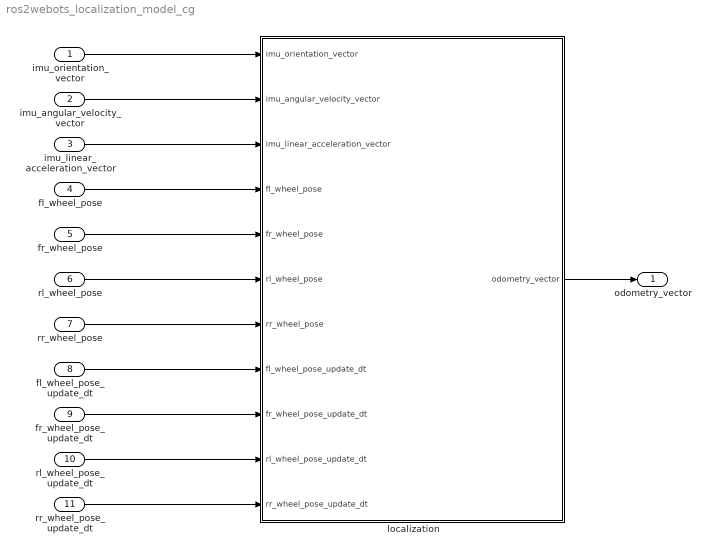
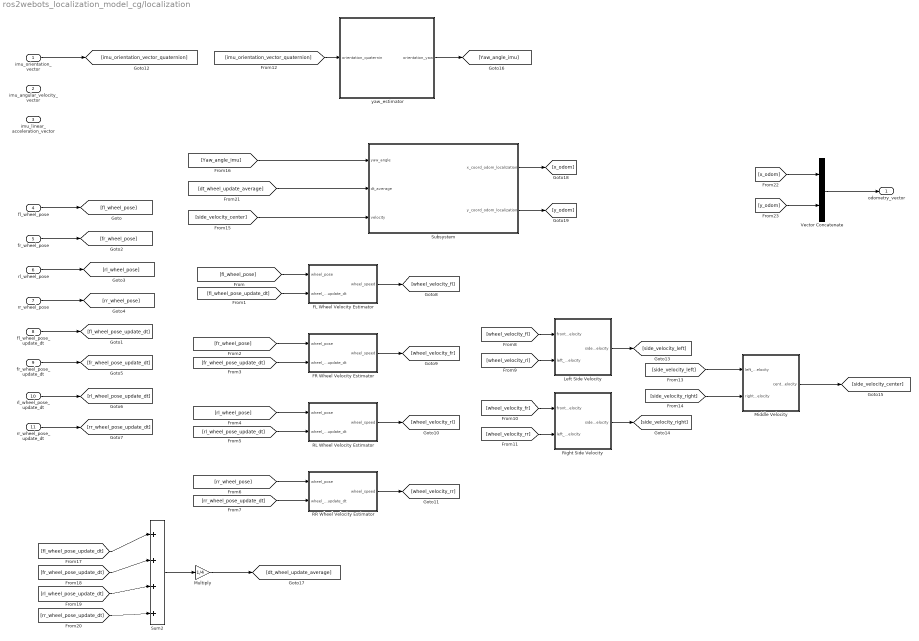
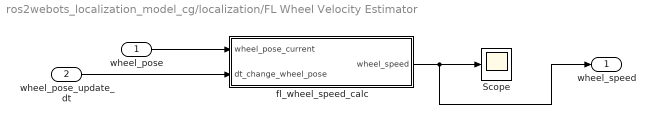
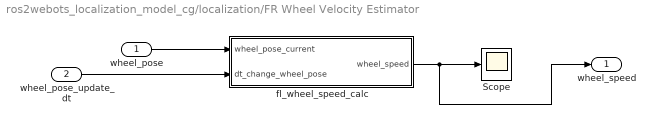
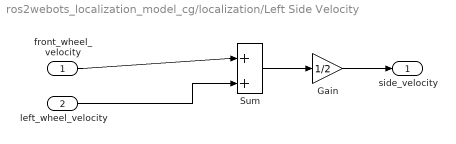
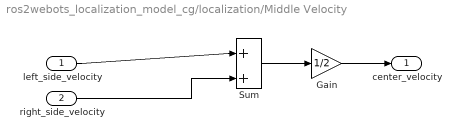
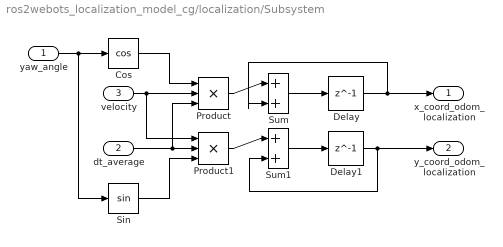
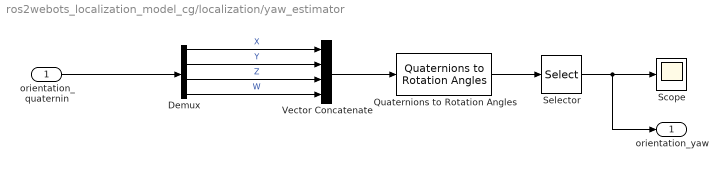
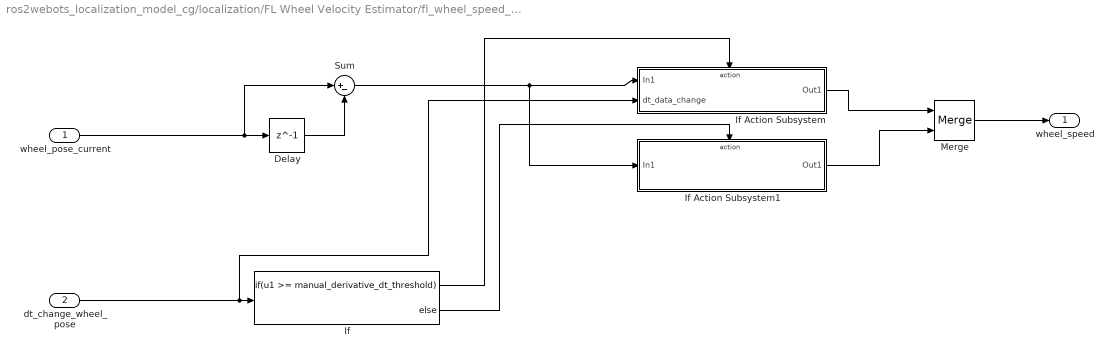
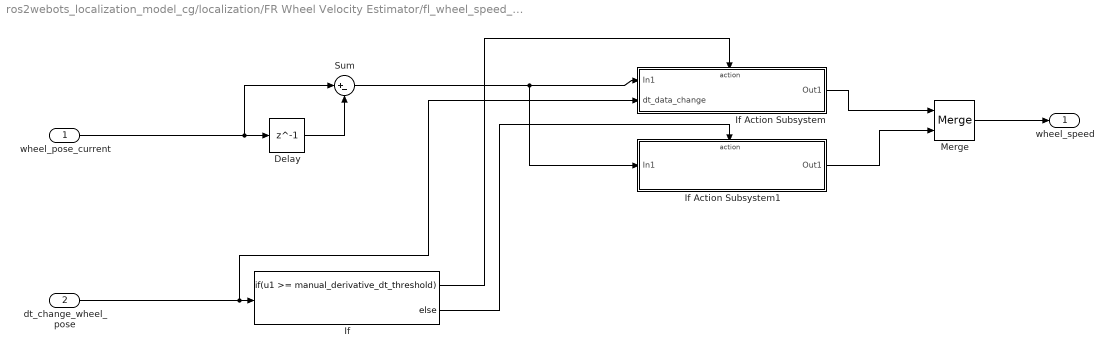
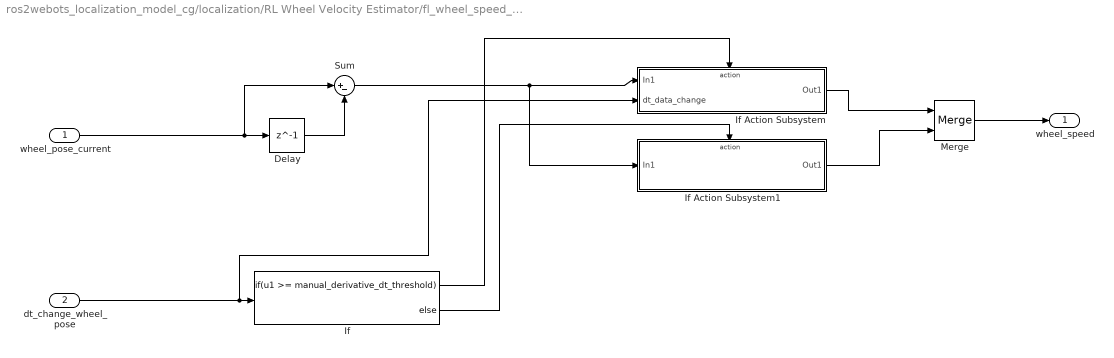
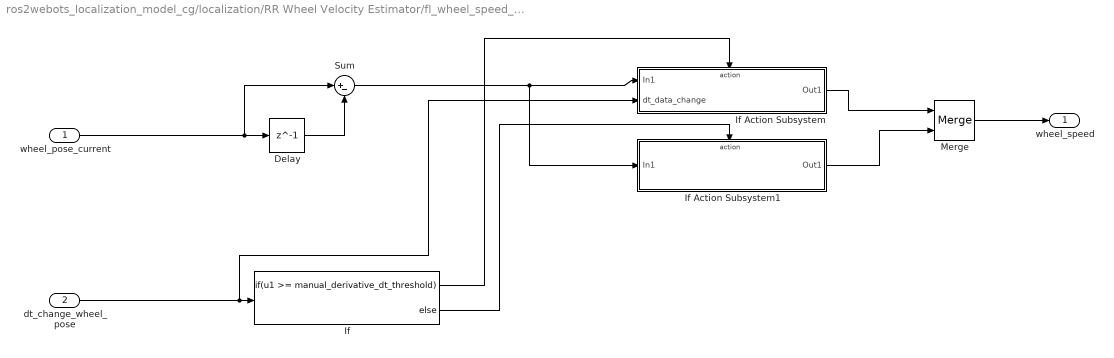
== system ros2webots_localization_model_cg/localization/RL Wheel Velocity Estimator ==
  wheel_pose : Inport
  wheel_pose_update_dt : Inport  Port=2
  Scope : Scope
  fl_wheel_speed_calc : Subsystem
  wheel_speed : Outport
  wires:
  wheel_pose/1 -> fl_wheel_speed_calc/1(wheel_pose_current)
  fl_wheel_speed_calc/1(wheel_speed) -> wheel_speed/1, Scope/1
  wheel_pose_update_dt/1 -> fl_wheel_speed_calc/2(dt_change_wheel_pose)

== system ros2webots_localization_model_cg/localization/RR Wheel Velocity Estimator ==
  wheel_pose : Inport
  wheel_pose_update_dt : Inport  Port=2
  Scope : Scope
  fl_wheel_speed_calc : Subsystem
  wheel_speed : Outport
  wires:
  wheel_pose/1 -> fl_wheel_speed_calc/1(wheel_pose_current)
  fl_wheel_speed_calc/1(wheel_speed) -> wheel_speed/1, Scope/1
  wheel_pose_update_dt/1 -> fl_wheel_speed_calc/2(dt_change_wheel_pose)

== system ros2webots_localization_model_cg/localization/Right Side Velocity ==
  front_wheel_velocity : Inport
  left_wheel_velocity : Inport  Port=2
  Gain : Gain  Gain=1/2
  Sum : Sum  Inputs=|++
  side_velocity : Outport
  wires:
  left_wheel_velocity/1 -> Sum/2
  front_wheel_velocity/1 -> Sum/1
  Sum/1 -> Gain/1
  Gain/1 -> side_velocity/1

== system ros2webots_localization_model_cg/localization/FL Wheel Velocity Estimator/fl_wheel_speed_calc/If Action Subsystem ==
  In1 : Inport
  dt_data_change : Inport  Port=2
  Action Port : ActionPort  ActionPortLabel=if(u1 >= manual_derivative_dt_threshold)
  Divide : Product  Inputs=*/
  Out1 : Outport
  wires:
  In1/1 -> Divide/1
  dt_data_change/1 -> Divide/2
  Divide/1 -> Out1/1

== system ros2webots_localization_model_cg/localization/FL Wheel Velocity Estimator/fl_wheel_speed_calc/If Action Subsystem1 ==
  In1 : Inport
  Action Port : ActionPort  ActionPortLabel=else
  Out1 : Outport
  wires:
  In1/1 -> Out1/1

== system ros2webots_localization_model_cg/localization/FR Wheel Velocity Estimator/fl_wheel_speed_calc/If Action Subsystem ==
  In1 : Inport
  dt_data_change : Inport  Port=2
  Action Port : ActionPort  ActionPortLabel=if(u1 >= manual_derivative_dt_threshold)
  Divide : Product  Inputs=*/
  Out1 : Outport
  wires:
  In1/1 -> Divide/1
  dt_data_change/1 -> Divide/2
  Divide/1 -> Out1/1

== system ros2webots_localization_model_cg/localization/FR Wheel Velocity Estimator/fl_wheel_speed_calc/If Action Subsystem1 ==
  In1 : Inport
  Action Port : ActionPort  ActionPortLabel=else
  Out1 : Outport
  wires:
  In1/1 -> Out1/1

== system ros2webots_localization_model_cg/localization/RL Wheel Velocity Estimator/fl_wheel_speed_calc/If Action Subsystem ==
  In1 : Inport
  dt_data_change : Inport  Port=2
  Action Port : ActionPort  ActionPortLabel=if(u1 >= manual_derivative_dt_threshold)
  Divide : Product  Inputs=*/
  Out1 : Outport
  wires:
  In1/1 -> Divide/1
  dt_data_change/1 -> Divide/2
  Divide/1 -> Out1/1

== system ros2webots_localization_model_cg/localization/RL Wheel Velocity Estimator/fl_wheel_speed_calc/If Action Subsystem1 ==
  In1 : Inport
  Action Port : ActionPort  ActionPortLabel=else
  Out1 : Outport
  wires:
  In1/1 -> Out1/1

== system ros2webots_localization_model_cg/localization/RR Wheel Velocity Estimator/fl_wheel_speed_calc/If Action Subsystem ==
  In1 : Inport
  dt_data_change : Inport  Port=2
  Action Port : ActionPort  ActionPortLabel=if(u1 >= manual_derivative_dt_threshold)
  Divide : Product  Inputs=*/
  Out1 : Outport
  wires:
  In1/1 -> Divide/1
  dt_data_change/1 -> Divide/2
  Divide/1 -> Out1/1

== system ros2webots_localization_model_cg/localization/RR Wheel Velocity Estimator/fl_wheel_speed_calc/If Action Subsystem1 ==
  In1 : Inport
  Action Port : ActionPort  ActionPortLabel=else
  Out1 : Outport
  wires:
  In1/1 -> Out1/1

//
// File: ros2webots_localization_model_cg.cpp
//
// Code generated for Simulink model 'ros2webots_localization_model_cg'.
//
// Model version                  : 1.236
// Simulink Coder version         : 9.9 (R2023a) 19-Nov-2022
// C/C++ source code generated on : Fri Feb  2 16:44:59 2024
//
// Target selection: ert.tlc
// Embedded hardware selection: Intel->x86-64 (Windows64)
// Code generation objectives: Unspecified
// Validation result: Not run
//
#include "ros2webots_localization_model_cg.h"
#include "rtwtypes.h"
#include <cmath>
#include "ros2webots_localization_model_cg_private.h"
#include "rt_defines.h"

extern "C"
{

#include "rt_nonfinite.h"

}

// Exported data definition

// Const memory section
// Definition for custom storage class: Const
const real_T wheel_based_localization_x_initial_coord{ 0.0 };// Referenced by: '<S9>/Delay' 

// Initial x coordinate of localization using only wheel pose data
const real_T wheel_based_localization_y_initial_coord{ 0.0 };// Referenced by: '<S9>/Delay1' 

// Initial y coordinate of localization using only wheel pose data

//
// Output and update for action system:
//    '<S11>/If Action Subsystem'
//    '<S14>/If Action Subsystem'
//    '<S17>/If Action Subsystem'
//    '<S20>/If Action Subsystem'
//
void ros2webots_localization_model_cg::ros2webots_lo_IfActionSubsystem(real_T
  rtu_In1, real_T rtu_dt_data_change, real_T *rty_Out1)
{
  // Product: '<S12>/Divide'
  *rty_Out1 = rtu_In1 / rtu_dt_data_change;
}

real_T rt_atan2d_snf(real_T u0, real_T u1)
{
  real_T y;
  if (std::isnan(u0) || std::isnan(u1)) {
    y = (rtNaN);
  } else if (std::isinf(u0) && std::isinf(u1)) {
    int32_T tmp;
    int32_T tmp_0;
    if (u0 > 0.0) {
      tmp = 1;
    } else {
      tmp = -1;
    }

    if (u1 > 0.0) {
      tmp_0 = 1;
    } else {
      tmp_0 = -1;
    }

    y = std::atan2(static_cast<real_T>(tmp), static_cast<real_T>(tmp_0));
  } else if (u1 == 0.0) {
    if (u0 > 0.0) {
      y = RT_PI / 2.0;
    } else if (u0 < 0.0) {
      y = -(RT_PI / 2.0);
    } else {
      y = 0.0;
    }
  } else {
    y = std::atan2(u0, u1);
  }

  return y;
}

// Model step function
void ros2webots_localization_model_cg::step()
{
  real_T rtb_Gain;
  real_T rtb_Gain_i;
  real_T rtb_Multiply;
  real_T rtb_Product1_a;
  real_T rtb_Product2;
  real_T rtb_fcn5;

  // SignalConversion generated from: '<S1>/Vector Concatenate' incorporates:
  //   Delay: '<S9>/Delay'
  //   Outport: '<Root>/odometry_vector'

  ros2webots_localization_model_Y.odometry_vector[0] =
    ros2webots_localization_mode_DW.Delay_DSTATE;

  // If: '<S11>/If' incorporates:
  //   Delay: '<S11>/Delay'
  //   Inport: '<Root>/fl_wheel_pose'
  //   Inport: '<Root>/fl_wheel_pose_update_dt'
  //   Sum: '<S11>/Sum'

  if (ros2webots_localization_model_U.fl_wheel_pose_update_dt >= 0.001) {
    // Outputs for IfAction SubSystem: '<S11>/If Action Subsystem' incorporates:
    //   ActionPort: '<S12>/Action Port'

    ros2webots_lo_IfActionSubsystem
      (ros2webots_localization_model_U.fl_wheel_pose -
       ros2webots_localization_mode_DW.Delay_DSTATE_g,
       ros2webots_localization_model_U.fl_wheel_pose_update_dt, &rtb_Multiply);

    // End of Outputs for SubSystem: '<S11>/If Action Subsystem'
  } else {
    // Outputs for IfAction SubSystem: '<S11>/If Action Subsystem1' incorporates:
    //   ActionPort: '<S13>/Action Port'

    // SignalConversion generated from: '<S13>/In1' incorporates:
    //   Delay: '<S11>/Delay'
    //   Inport: '<Root>/fl_wheel_pose'
    //   Sum: '<S11>/Sum'

    rtb_Multiply = ros2webots_localization_model_U.fl_wheel_pose -
      ros2webots_localization_mode_DW.Delay_DSTATE_g;

    // End of Outputs for SubSystem: '<S11>/If Action Subsystem1'
  }

  // End of If: '<S11>/If'

  // If: '<S17>/If' incorporates:
  //   Delay: '<S17>/Delay'
  //   Inport: '<Root>/rl_wheel_pose'
  //   Inport: '<Root>/rl_wheel_pose_update_dt'
  //   Sum: '<S17>/Sum'

  if (ros2webots_localization_model_U.rl_wheel_pose_update_dt >= 0.001) {
    // Outputs for IfAction SubSystem: '<S17>/If Action Subsystem' incorporates:
    //   ActionPort: '<S18>/Action Port'

    ros2webots_lo_IfActionSubsystem
      (ros2webots_localization_model_U.rl_wheel_pose -
       ros2webots_localization_mode_DW.Delay_DSTATE_j,
       ros2webots_localization_model_U.rl_wheel_pose_update_dt, &rtb_Gain_i);

    // End of Outputs for SubSystem: '<S17>/If Action Subsystem'
  } else {
    // Outputs for IfAction SubSystem: '<S17>/If Action Subsystem1' incorporates:
    //   ActionPort: '<S19>/Action Port'

    // SignalConversion generated from: '<S19>/In1' incorporates:
    //   Delay: '<S17>/Delay'
    //   Inport: '<Root>/rl_wheel_pose'
    //   Sum: '<S17>/Sum'

    rtb_Gain_i = ros2webots_localization_model_U.rl_wheel_pose -
      ros2webots_localization_mode_DW.Delay_DSTATE_j;

    // End of Outputs for SubSystem: '<S17>/If Action Subsystem1'
  }

  // End of If: '<S17>/If'

  // Gain: '<S4>/Gain' incorporates:
  //   Sum: '<S4>/Sum'

  rtb_Gain = (rtb_Multiply + rtb_Gain_i) * 0.5;

  // If: '<S14>/If' incorporates:
  //   Delay: '<S14>/Delay'
  //   Inport: '<Root>/fr_wheel_pose'
  //   Inport: '<Root>/fr_wheel_pose_update_dt'
  //   Sum: '<S14>/Sum'

  if (ros2webots_localization_model_U.fr_wheel_pose_update_dt >= 0.001) {
    // Outputs for IfAction SubSystem: '<S14>/If Action Subsystem' incorporates:
    //   ActionPort: '<S15>/Action Port'

    ros2webots_lo_IfActionSubsystem
      (ros2webots_localization_model_U.fr_wheel_pose -
       ros2webots_localization_mode_DW.Delay_DSTATE_o,
       ros2webots_localization_model_U.fr_wheel_pose_update_dt, &rtb_Gain_i);

    // End of Outputs for SubSystem: '<S14>/If Action Subsystem'
  } else {
    // Outputs for IfAction SubSystem: '<S14>/If Action Subsystem1' incorporates:
    //   ActionPort: '<S16>/Action Port'

    // SignalConversion generated from: '<S16>/In1' incorporates:
    //   Delay: '<S14>/Delay'
    //   Inport: '<Root>/fr_wheel_pose'
    //   Sum: '<S14>/Sum'

    rtb_Gain_i = ros2webots_localization_model_U.fr_wheel_pose -
      ros2webots_localization_mode_DW.Delay_DSTATE_o;

    // End of Outputs for SubSystem: '<S14>/If Action Subsystem1'
  }

  // End of If: '<S14>/If'

  // If: '<S20>/If' incorporates:
  //   Delay: '<S20>/Delay'
  //   Inport: '<Root>/rr_wheel_pose'
  //   Inport: '<Root>/rr_wheel_pose_update_dt'
  //   Sum: '<S20>/Sum'

  if (ros2webots_localization_model_U.rr_wheel_pose_update_dt >= 0.001) {
    // Outputs for IfAction SubSystem: '<S20>/If Action Subsystem' incorporates:
    //   ActionPort: '<S21>/Action Port'

    ros2webots_lo_IfActionSubsystem
      (ros2webots_localization_model_U.rr_wheel_pose -
       ros2webots_localization_mode_DW.Delay_DSTATE_i,
       ros2webots_localization_model_U.rr_wheel_pose_update_dt, &rtb_Multiply);

    // End of Outputs for SubSystem: '<S20>/If Action Subsystem'
  } else {
    // Outputs for IfAction SubSystem: '<S20>/If Action Subsystem1' incorporates:
    //   ActionPort: '<S22>/Action Port'

    // SignalConversion generated from: '<S22>/In1' incorporates:
    //   Delay: '<S20>/Delay'
    //   Inport: '<Root>/rr_wheel_pose'
    //   Sum: '<S20>/Sum'

    rtb_Multiply = ros2webots_localization_model_U.rr_wheel_pose -
      ros2webots_localization_mode_DW.Delay_DSTATE_i;

    // End of Outputs for SubSystem: '<S20>/If Action Subsystem1'
  }

  // End of If: '<S20>/If'

  // Gain: '<S5>/Gain' incorporates:
  //   Gain: '<S8>/Gain'
  //   Sum: '<S5>/Sum'
  //   Sum: '<S8>/Sum'

  rtb_Gain_i = ((rtb_Gain_i + rtb_Multiply) * 0.5 + rtb_Gain) * 0.5;

  // Gain: '<S1>/Multiply' incorporates:
  //   Inport: '<Root>/fl_wheel_pose_update_dt'
  //   Inport: '<Root>/fr_wheel_pose_update_dt'
  //   Inport: '<Root>/rl_wheel_pose_update_dt'
  //   Inport: '<Root>/rr_wheel_pose_update_dt'
  //   Sum: '<S1>/Sum2'

  rtb_Multiply = (((ros2webots_localization_model_U.fl_wheel_pose_update_dt +
                    ros2webots_localization_model_U.fr_wheel_pose_update_dt) +
                   ros2webots_localization_model_U.rl_wheel_pose_update_dt) +
                  ros2webots_localization_model_U.rr_wheel_pose_update_dt) *
    0.25;

  // Sqrt: '<S30>/sqrt' incorporates:
  //   Inport: '<Root>/imu_orientation_vector'
  //   Product: '<S31>/Product'
  //   Product: '<S31>/Product1'
  //   Product: '<S31>/Product2'
  //   Product: '<S31>/Product3'
  //   SignalConversion generated from: '<S10>/Vector Concatenate'
  //   Sum: '<S31>/Sum'
  //
  rtb_Gain = std::sqrt(((ros2webots_localization_model_U.imu_orientation_vector
    [0] * ros2webots_localization_model_U.imu_orientation_vector[0] +
    ros2webots_localization_model_U.imu_orientation_vector[1] *
    ros2webots_localization_model_U.imu_orientation_vector[1]) +
                        ros2webots_localization_model_U.imu_orientation_vector[2]
                        * ros2webots_localization_model_U.imu_orientation_vector[
                        2]) +
                       ros2webots_localization_model_U.imu_orientation_vector[3]
                       * ros2webots_localization_model_U.imu_orientation_vector
                       [3]);

  // Product: '<S25>/Product' incorporates:
  //   Inport: '<Root>/imu_orientation_vector'
  //   SignalConversion generated from: '<S10>/Vector Concatenate'

  rtb_fcn5 = ros2webots_localization_model_U.imu_orientation_vector[0] /
    rtb_Gain;

  // Product: '<S25>/Product1' incorporates:
  //   Inport: '<Root>/imu_orientation_vector'
  //   SignalConversion generated from: '<S10>/Vector Concatenate'

  rtb_Product1_a = ros2webots_localization_model_U.imu_orientation_vector[1] /
    rtb_Gain;

  // Product: '<S25>/Product2' incorporates:
  //   Inport: '<Root>/imu_orientation_vector'
  //   SignalConversion generated from: '<S10>/Vector Concatenate'

  rtb_Product2 = ros2webots_localization_model_U.imu_orientation_vector[2] /
    rtb_Gain;

  // Product: '<S25>/Product3' incorporates:
  //   Inport: '<Root>/imu_orientation_vector'
  //   SignalConversion generated from: '<S10>/Vector Concatenate'

  rtb_Gain = ros2webots_localization_model_U.imu_orientation_vector[3] /
    rtb_Gain;

  // Trigonometry: '<S24>/Trigonometric Function3' incorporates:
  //   Fcn: '<S23>/fcn4'
  //   Fcn: '<S23>/fcn5'

  rtb_Gain = rt_atan2d_snf((rtb_Product2 * rtb_Gain + rtb_fcn5 * rtb_Product1_a)
    * 2.0, ((rtb_fcn5 * rtb_fcn5 - rtb_Product1_a * rtb_Product1_a) -
            rtb_Product2 * rtb_Product2) + rtb_Gain * rtb_Gain);

  // Sum: '<S9>/Sum' incorporates:
  //   Delay: '<S9>/Delay'
  //   Product: '<S9>/Product'
  //   Trigonometry: '<S9>/Cos'

  ros2webots_localization_mode_DW.Delay_DSTATE += std::cos(rtb_Gain) *
    rtb_Gain_i * rtb_Multiply;

  // SignalConversion generated from: '<S1>/Vector Concatenate' incorporates:
  //   Delay: '<S9>/Delay1'
  //   Outport: '<Root>/odometry_vector'

  ros2webots_localization_model_Y.odometry_vector[1] =
    ros2webots_localization_mode_DW.Delay1_DSTATE;

  // Sum: '<S9>/Sum1' incorporates:
  //   Delay: '<S9>/Delay1'
  //   Product: '<S9>/Product1'
  //   Trigonometry: '<S9>/Sin'

  ros2webots_localization_mode_DW.Delay1_DSTATE += rtb_Gain_i * rtb_Multiply *
    std::sin(rtb_Gain);

  // Update for Delay: '<S11>/Delay' incorporates:
  //   Inport: '<Root>/fl_wheel_pose'

  ros2webots_localization_mode_DW.Delay_DSTATE_g =
    ros2webots_localization_model_U.fl_wheel_pose;

  // Update for Delay: '<S17>/Delay' incorporates:
  //   Inport: '<Root>/rl_wheel_pose'

  ros2webots_localization_mode_DW.Delay_DSTATE_j =
    ros2webots_localization_model_U.rl_wheel_pose;

  // Update for Delay: '<S14>/Delay' incorporates:
  //   Inport: '<Root>/fr_wheel_pose'

  ros2webots_localization_mode_DW.Delay_DSTATE_o =
    ros2webots_localization_model_U.fr_wheel_pose;

  // Update for Delay: '<S20>/Delay' incorporates:
  //   Inport: '<Root>/rr_wheel_pose'

  ros2webots_localization_mode_DW.Delay_DSTATE_i =
    ros2webots_localization_model_U.rr_wheel_pose;
}
